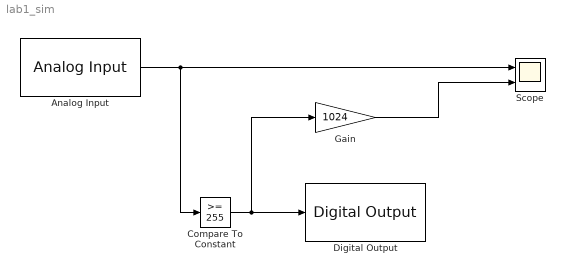
/*
 * Academic License - for use in teaching, academic research, and meeting
 * course requirements at degree granting institutions only.  Not for
 * government, commercial, or other organizational use.
 *
 * File: lab1_sim.c
 *
 * Code generated for Simulink model 'lab1_sim'.
 *
 * Model version                  : 1.1
 * Simulink Coder version         : 9.9 (R2023a) 19-Nov-2022
 * C/C++ source code generated on : Mon Jul 13 16:50:09 2026
 *
 * Target selection: ert.tlc
 * Embedded hardware selection: Atmel->AVR
 * Code generation objectives: Unspecified
 * Validation result: Not run
 */

#include "lab1_sim.h"
#include "lab1_sim_types.h"
#include "rtwtypes.h"
#include "lab1_sim_private.h"

/* Block signals (default storage) */
B_lab1_sim_T lab1_sim_B;

/* Block states (default storage) */
DW_lab1_sim_T lab1_sim_DW;

/* Real-time model */
static RT_MODEL_lab1_sim_T lab1_sim_M_;
RT_MODEL_lab1_sim_T *const lab1_sim_M = &lab1_sim_M_;

/* Model step function */
void lab1_sim_step(void)
{
  MW_AnalogIn_ResultDataType_Type datatype_id;
  codertarget_arduinobase_inter_T *obj;
  boolean_T rtb_Compare;

  /* MATLABSystem: '<Root>/Analog Input' */
  if (lab1_sim_DW.obj.SampleTime != lab1_sim_P.AnalogInput_SampleTime) {
    lab1_sim_DW.obj.SampleTime = lab1_sim_P.AnalogInput_SampleTime;
  }

  obj = &lab1_sim_DW.obj;
  obj->AnalogInDriverObj.MW_ANALOGIN_HANDLE = MW_AnalogIn_GetHandle(58UL);
  datatype_id = MW_ANALOGIN_UINT16;

  /* MATLABSystem: '<Root>/Analog Input' */
  MW_AnalogInSingle_ReadResult
    (lab1_sim_DW.obj.AnalogInDriverObj.MW_ANALOGIN_HANDLE,
     &lab1_sim_B.AnalogInput, datatype_id);

  /* RelationalOperator: '<S1>/Compare' incorporates:
   *  Constant: '<S1>/Constant'
   */
  rtb_Compare = (lab1_sim_B.AnalogInput >= lab1_sim_P.CompareToConstant_const);

  /* MATLABSystem: '<Root>/Digital Output' */
  writeDigitalPin(9, (uint8_T)rtb_Compare);

  /* Gain: '<Root>/Gain' */
  lab1_sim_B.Gain = (uint8_T)(rtb_Compare ? (int16_T)lab1_sim_P.Gain_Gain : 0);

  {                                    /* Sample time: [0.01s, 0.0s] */
  }

  /* Update absolute time for base rate */
  /* The "clockTick0" counts the number of times the code of this task has
   * been executed. The absolute time is the multiplication of "clockTick0"
   * and "Timing.stepSize0". Size of "clockTick0" ensures timer will not
   * overflow during the application lifespan selected.
   */
  lab1_sim_M->Timing.taskTime0 =
    ((time_T)(++lab1_sim_M->Timing.clockTick0)) * lab1_sim_M->Timing.stepSize0;
}
